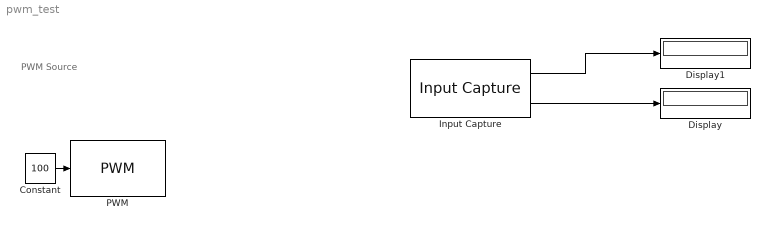
/*
 * Academic License - for use in teaching, academic research, and meeting
 * course requirements at degree granting institutions only.  Not for
 * government, commercial, or other organizational use.
 *
 * File: pwm_test.c
 *
 * Code generated for Simulink model 'pwm_test'.
 *
 * Model version                  : 1.18
 * Simulink Coder version         : 9.7 (R2022a) 13-Nov-2021
 * C/C++ source code generated on : Thu May  5 23:12:24 2022
 *
 * Target selection: ert.tlc
 * Embedded hardware selection: Atmel->AVR
 * Code generation objectives: Unspecified
 * Validation result: Not run
 */

#include "pwm_test.h"
#include "pwm_test_types.h"
#include "rtwtypes.h"
#include "pwm_test_private.h"

/* Block signals (default storage) */
B_pwm_test_T pwm_test_B;

/* Block states (default storage) */
DW_pwm_test_T pwm_test_DW;

/* Real-time model */
static RT_MODEL_pwm_test_T pwm_test_M_;
RT_MODEL_pwm_test_T *const pwm_test_M = &pwm_test_M_;

/* Model step function */
void pwm_test_step(void)
{
  codertarget_arduinobase_int_n_T *obj;
  real_T y;

  /* MATLABSystem: '<Root>/PWM' incorporates:
   *  Constant: '<Root>/Constant'
   */
  obj = &pwm_test_DW.obj_o;
  obj->PWMDriverObj.MW_PWM_HANDLE = MW_PWM_GetHandle(2UL);
  if (pwm_test_P.Constant_Value <= 255.0) {
    y = pwm_test_P.Constant_Value;
  } else {
    y = 255.0;
  }

  if (!(y >= 0.0)) {
    y = 0.0;
  }

  MW_PWM_SetDutyCycle(pwm_test_DW.obj_o.PWMDriverObj.MW_PWM_HANDLE, y);

  /* End of MATLABSystem: '<Root>/PWM' */

  /* MATLABSystem: '<Root>/Input Capture' */
  computeFrequencyAndDutycycle(48, &pwm_test_B.InputCapture_o1,
    &pwm_test_B.InputCapture_o2);

  {                                    /* Sample time: [0.2s, 0.0s] */
  }

  /* Update absolute time for base rate */
  /* The "clockTick0" counts the number of times the code of this task has
   * been executed. The absolute time is the multiplication of "clockTick0"
   * and "Timing.stepSize0". Size of "clockTick0" ensures timer will not
   * overflow during the application lifespan selected.
   */
  pwm_test_M->Timing.taskTime0 =
    ((time_T)(++pwm_test_M->Timing.clockTick0)) * pwm_test_M->Timing.stepSize0;
}
